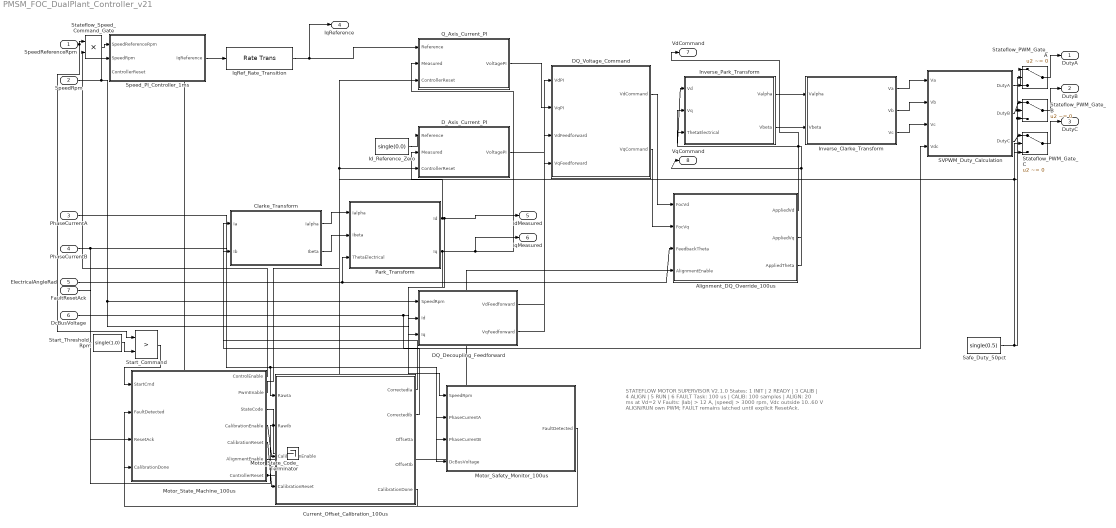
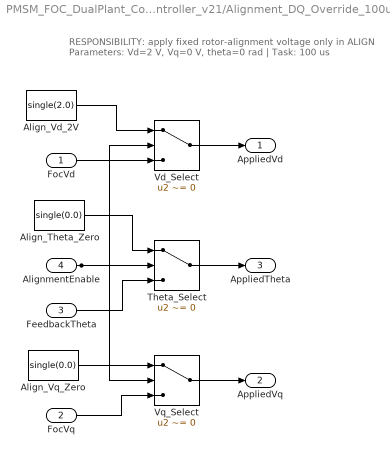
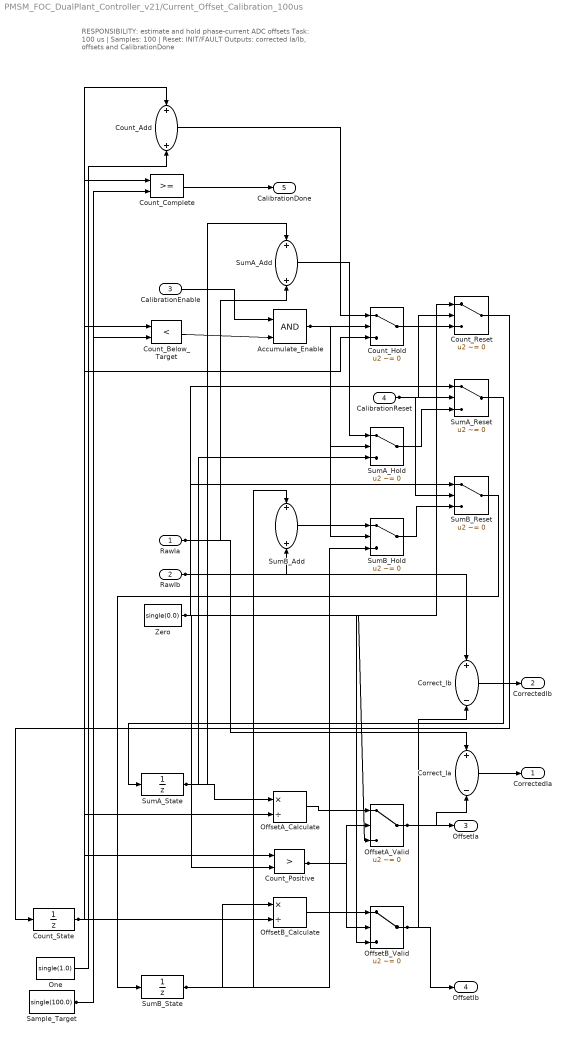
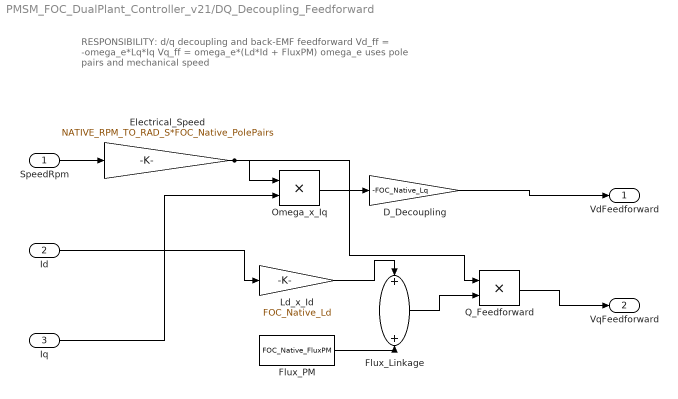
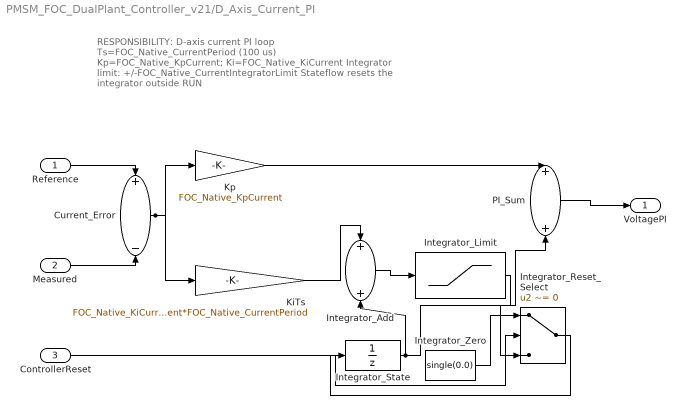
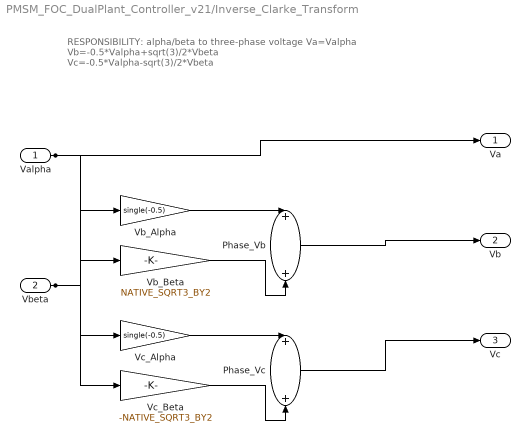
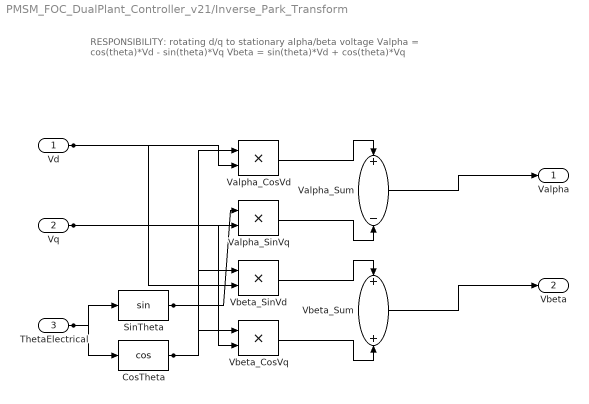
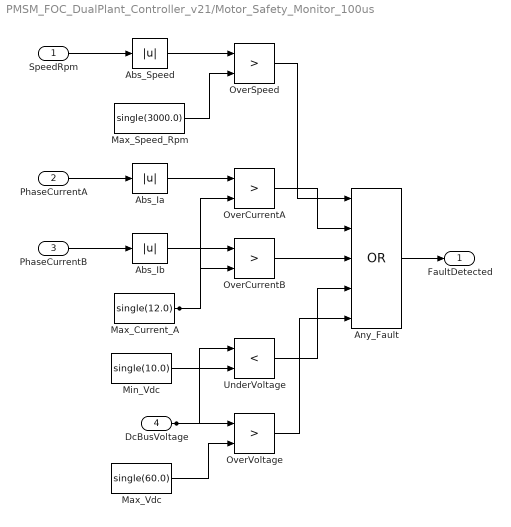
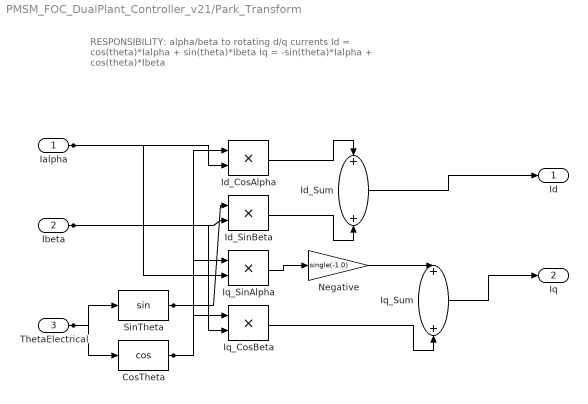
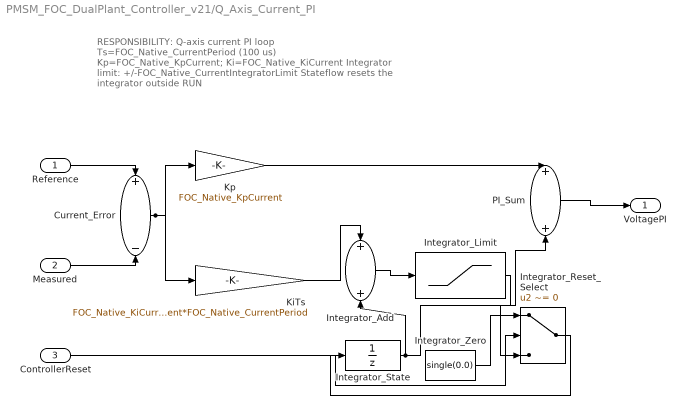
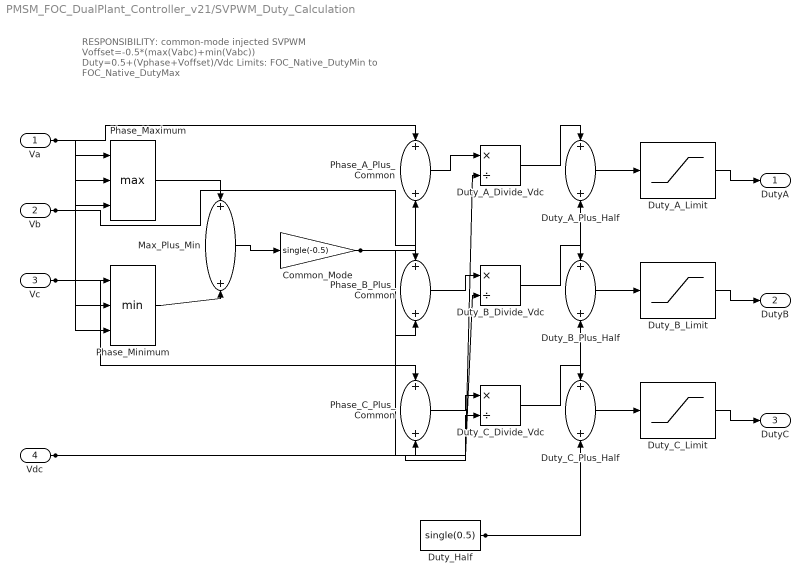
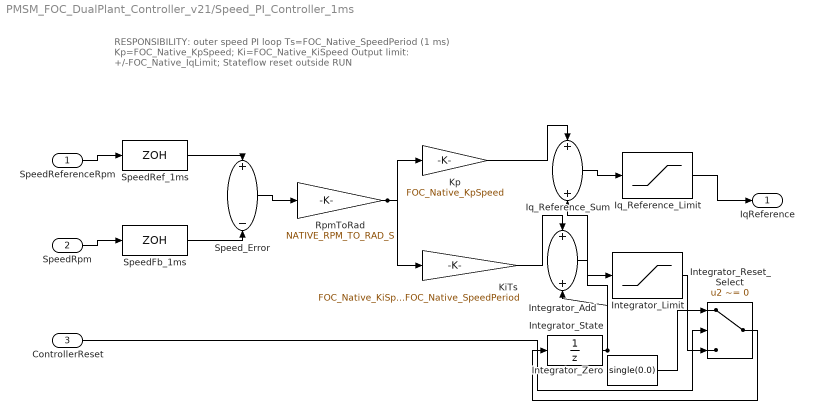
== system PMSM_FOC_DualPlant_Controller_v21/Clarke_Transform ==
  note: RESPONSIBILITY: two-current Clarke transform Ialpha = Ia; Ibeta = (Ia + 2*Ib)/sqrt(3) Parameter: NATIVE_INV_SQRT3
  Ia : Inport  OutDataTypeStr=single
  Ib : Inport  Port=2  OutDataTypeStr=single
  Ia_Plus_2Ib : Sum
  Ib_x2 : Gain  Gain=single(2.0)
  InvSqrt3 : Gain  Gain=NATIVE_INV_SQRT3
  Ialpha : Outport  OutDataTypeStr=single
  Ibeta : Outport  Port=2  OutDataTypeStr=single
  wires:
  Ia/1 -> Ialpha/1, Ia_Plus_2Ib/1
  Ib/1 -> Ib_x2/1
  Ib_x2/1 -> Ia_Plus_2Ib/2
  Ia_Plus_2Ib/1 -> InvSqrt3/1
  InvSqrt3/1 -> Ibeta/1

== system PMSM_FOC_DualPlant_Controller_v21/DQ_Voltage_Command ==
  note: RESPONSIBILITY: synthesize bounded d/q voltage commands Vd = sat(Vd_PI + Vd_ff); Vq = sat(Vq_PI + Vq_ff) Limit: +/-FOC_Native_VoltageLimit
  VdPI : Inport  OutDataTypeStr=single
  VqPI : Inport  Port=2  OutDataTypeStr=single
  VdFeedforward : Inport  Port=3  OutDataTypeStr=single
  VqFeedforward : Inport  Port=4  OutDataTypeStr=single
  Vd_Limit : Saturate  UpperLimit=FOC_Native_VoltageLimit  LowerLimit=-FOC_Native_VoltageLimit
  Vd_Raw : Sum
  Vq_Limit : Saturate  UpperLimit=FOC_Native_VoltageLimit  LowerLimit=-FOC_Native_VoltageLimit
  Vq_Raw : Sum
  VdCommand : Outport  OutDataTypeStr=single
  VqCommand : Outport  Port=2  OutDataTypeStr=single
  wires:
  VdPI/1 -> Vd_Raw/1
  VdFeedforward/1 -> Vd_Raw/2
  VqPI/1 -> Vq_Raw/1
  VqFeedforward/1 -> Vq_Raw/2
  Vd_Raw/1 -> Vd_Limit/1
  Vq_Raw/1 -> Vq_Limit/1
  Vd_Limit/1 -> VdCommand/1
  Vq_Limit/1 -> VqCommand/1

== stateflow chart PMSM_FOC_DualPlant_Controller_v21/Motor_State_Machine_100us ==
  state SUPERVISED
    state INIT
      entry:
      ControlEnable = 0;
      PwmEnable = 0;
      StateCode = 1;
      CalibrationEnable = 0;
      CalibrationReset = 1;
      AlignmentEnable = 0;
      ControllerReset = 1;
    state READY
      entry:
      ControlEnable = 0;
      PwmEnable = 0;
      StateCode = 2;
      CalibrationEnable = 0;
      CalibrationReset = 0;
      AlignmentEnable = 0;
      ControllerReset = 1;
    state CALIB
      entry:
      ControlEnable = 0;
      PwmEnable = 0;
      StateCode = 3;
      CalibrationEnable = 1;
      CalibrationReset = 0;
      AlignmentEnable = 0;
      ControllerReset = 1;
    state ALIGN
      entry:
      ControlEnable = 0;
      PwmEnable = 1;
      StateCode = 4;
      CalibrationEnable = 0;
      CalibrationReset = 0;
      AlignmentEnable = 1;
      ControllerReset = 1;
    state RUN
      entry:
      ControlEnable = 1;
      PwmEnable = 1;
      StateCode = 5;
      CalibrationEnable = 0;
      CalibrationReset = 0;
      AlignmentEnable = 0;
      ControllerReset = 0;
    INIT -> READY : after(1,tick)
    READY -> CALIB : [StartCmd]
    CALIB -> ALIGN [order 1] : [CalibrationDone]
    ALIGN -> RUN [order 1] : after(200,tick)
    ALIGN -> INIT [order 2] : [!StartCmd]
    RUN -> INIT : [!StartCmd]
  state FAULT
    entry:
    ControlEnable = 0;
    PwmEnable = 0;
    StateCode = 6;
    CalibrationEnable = 0;
    CalibrationReset = 1;
    AlignmentEnable = 0;
    ControllerReset = 1;
  (default) -> INIT
  CALIB -> FAULT [order 2] : after(150,tick)
  SUPERVISED -> FAULT : [FaultDetected]
  FAULT -> INIT : [ResetAck && !FaultDetected && !StartCmd]
  data: StartCmd input boolean; FaultDetected input boolean; ResetAck input boolean; CalibrationDone input boolean; ControlEnable output boolean; PwmEnable output boolean; StateCode output uint8; CalibrationEnable output boolean; CalibrationReset output boolean; AlignmentEnable output boolean; ControllerReset output boolean

/*
 * File: PMSM_FOC_DualPlant_Controller_v21.c
 *
 * Code generated for Simulink model 'PMSM_FOC_DualPlant_Controller_v21'.
 *
 * Model version                  : 1.33
 * Simulink Coder version         : 24.1 (R2024a) 19-Nov-2023
 * C/C++ source code generated on : Fri Aug 28 17:17:17 2026
 *
 * Target selection: ert.tlc
 * Embedded hardware selection: Intel->x86-64 (Windows64)
 * Code generation objectives: Unspecified
 * Validation result: Not run
 */

#include "PMSM_FOC_DualPlant_Controller_v21.h"
#include "rtwtypes.h"
#include <math.h>

/* Named constants for Chart: '<Root>/Motor_State_Machine_100us' */
#define PMSM_FOC_Dua_IN_NO_ACTIVE_CHILD ((uint8_T)0U)
#define PMSM_FOC_DualPlan_IN_SUPERVISED ((uint8_T)2U)
#define PMSM_FOC_DualPlant_Con_IN_ALIGN ((uint8_T)1U)
#define PMSM_FOC_DualPlant_Con_IN_CALIB ((uint8_T)2U)
#define PMSM_FOC_DualPlant_Con_IN_FAULT ((uint8_T)1U)
#define PMSM_FOC_DualPlant_Con_IN_READY ((uint8_T)4U)
#define PMSM_FOC_DualPlant_Cont_IN_INIT ((uint8_T)3U)
#define PMSM_FOC_DualPlant_Contr_IN_RUN ((uint8_T)5U)

/* Exported block parameters */
real32_T FOC_Native_CurrentIntegratorLimit = 30.0F;
                                  /* Variable: FOC_Native_CurrentIntegratorLimit
                                   * Referenced by:
                                   *   '<S6>/Integrator_Limit'
                                   *   '<S12>/Integrator_Limit'
                                   */
real32_T FOC_Native_CurrentPeriod = 0.0001F;/* Variable: FOC_Native_CurrentPeriod
                                             * Referenced by:
                                             *   '<S6>/KiTs'
                                             *   '<S12>/KiTs'
                                             */
real32_T FOC_Native_DutyMax = 0.98F;   /* Variable: FOC_Native_DutyMax
                                        * Referenced by:
                                        *   '<S13>/Duty_A_Limit'
                                        *   '<S13>/Duty_B_Limit'
                                        *   '<S13>/Duty_C_Limit'
                                        */
real32_T FOC_Native_DutyMin = 0.02F;   /* Variable: FOC_Native_DutyMin
                                        * Referenced by:
                                        *   '<S13>/Duty_A_Limit'
                                        *   '<S13>/Duty_B_Limit'
                                        *   '<S13>/Duty_C_Limit'
                                        */
real32_T FOC_Native_FluxPM = 0.05F;    /* Variable: FOC_Native_FluxPM
                                        * Referenced by: '<S4>/Flux_PM'
                                        */
real32_T FOC_Native_IqLimit = 8.0F;    /* Variable: FOC_Native_IqLimit
                                        * Referenced by:
                                        *   '<S14>/Integrator_Limit'
                                        *   '<S14>/Iq_Reference_Limit'
                                        */
real32_T FOC_Native_KiCurrent = 500.0F;/* Variable: FOC_Native_KiCurrent
                                        * Referenced by:
                                        *   '<S6>/KiTs'
                                        *   '<S12>/KiTs'
                                        */
real32_T FOC_Native_KiSpeed = 0.05F;   /* Variable: FOC_Native_KiSpeed
                                        * Referenced by: '<S14>/KiTs'
                                        */
real32_T FOC_Native_KpCurrent = 1.0F;  /* Variable: FOC_Native_KpCurrent
                                        * Referenced by:
                                        *   '<S6>/Kp'
                                        *   '<S12>/Kp'
                                        */
real32_T FOC_Native_KpSpeed = 0.02F;   /* Variable: FOC_Native_KpSpeed
                                        * Referenced by: '<S14>/Kp'
                                        */
real32_T FOC_Native_Ld = 0.001F;       /* Variable: FOC_Native_Ld
                                        * Referenced by: '<S4>/Ld_x_Id'
                                        */
real32_T FOC_Native_Lq = 0.001F;       /* Variable: FOC_Native_Lq
                                        * Referenced by: '<S4>/D_Decoupling'
                                        */
real32_T FOC_Native_PolePairs = 4.0F;  /* Variable: FOC_Native_PolePairs
                                        * Referenced by: '<S4>/Electrical_Speed'
                                        */
real32_T FOC_Native_SpeedPeriod = 0.001F;/* Variable: FOC_Native_SpeedPeriod
                                          * Referenced by: '<S14>/KiTs'
                                          */
real32_T FOC_Native_VoltageLimit = 26.0F;/* Variable: FOC_Native_VoltageLimit
                                          * Referenced by:
                                          *   '<S5>/Vd_Limit'
                                          *   '<S5>/Vq_Limit'
                                          */

/* Block signals (default storage) */
B_PMSM_FOC_DualPlant_Controll_T PMSM_FOC_DualPlant_Controller_B;

/* Block states (default storage) */
DW_PMSM_FOC_DualPlant_Control_T PMSM_FOC_DualPlant_Controlle_DW;

/* External inputs (root inport signals with default storage) */
ExtU_PMSM_FOC_DualPlant_Contr_T PMSM_FOC_DualPlant_Controller_U;

/* External outputs (root outports fed by signals with default storage) */
ExtY_PMSM_FOC_DualPlant_Contr_T PMSM_FOC_DualPlant_Controller_Y;

/* Real-time model */
static RT_MODEL_PMSM_FOC_DualPlant_C_T PMSM_FOC_DualPlant_Controlle_M_;
RT_MODEL_PMSM_FOC_DualPlant_C_T *const PMSM_FOC_DualPlant_Controlle_M =
  &PMSM_FOC_DualPlant_Controlle_M_;
static void rate_scheduler(void);

/*
 *         This function updates active task flag for each subrate.
 *         The function is called at model base rate, hence the
 *         generated code self-manages all its subrates.
 */
static void rate_scheduler(void)
{
  /* Compute which subrates run during the next base time step.  Subrates
   * are an integer multiple of the base rate counter.  Therefore, the subtask
   * counter is reset when it reaches its limit (zero means run).
   */
  (PMSM_FOC_DualPlant_Controlle_M->Timing.TaskCounters.TID[1])++;
  if ((PMSM_FOC_DualPlant_Controlle_M->Timing.TaskCounters.TID[1]) > 9) {/* Sample time: [0.001s, 0.0s] */
    PMSM_FOC_DualPlant_Controlle_M->Timing.TaskCounters.TID[1] = 0;
  }
}

/* Model step function */
void PMSM_FOC_DualPlant_Controller_v21_step(void)
{
  real32_T rtb_CosTheta;
  real32_T rtb_Current_Error;
  real32_T rtb_Electrical_Speed;
  real32_T rtb_Phase_Maximum;
  real32_T rtb_Phase_Minimum;
  real32_T rtb_SinTheta;
  boolean_T rtb_Any_Fault;
  boolean_T rtb_Start_Command;

  /* RelationalOperator: '<Root>/Start_Command' incorporates:
   *  Constant: '<Root>/Start_Threshold_Rpm'
   *  Inport: '<Root>/SpeedReferenceRpm'
   */
  rtb_Start_Command = (PMSM_FOC_DualPlant_Controller_U.SpeedReferenceRpm >
                       PMSM_FOC_DualPlant_Controller_P.Start_Threshold_Rpm_Value);

  /* Logic: '<S9>/Any_Fault' incorporates:
   *  Abs: '<S9>/Abs_Ia'
   *  Abs: '<S9>/Abs_Ib'
   *  Abs: '<S9>/Abs_Speed'
   *  Constant: '<S9>/Max_Current_A'
   *  Constant: '<S9>/Max_Speed_Rpm'
   *  Constant: '<S9>/Max_Vdc'
   *  Constant: '<S9>/Min_Vdc'
   *  Inport: '<Root>/DcBusVoltage'
   *  Inport: '<Root>/PhaseCurrentA'
   *  Inport: '<Root>/PhaseCurrentB'
   *  Inport: '<Root>/SpeedRpm'
   *  RelationalOperator: '<S9>/OverCurrentA'
   *  RelationalOperator: '<S9>/OverCurrentB'
   *  RelationalOperator: '<S9>/OverSpeed'
   *  RelationalOperator: '<S9>/OverVoltage'
   *  RelationalOperator: '<S9>/UnderVoltage'
   */
  rtb_Any_Fault = ((fabsf(PMSM_FOC_DualPlant_Controller_U.SpeedRpm) >
                    PMSM_FOC_DualPlant_Controller_P.Max_Speed_Rpm_Value) ||
                   (fabsf(PMSM_FOC_DualPlant_Controller_U.PhaseCurrentA) >
                    PMSM_FOC_DualPlant_Controller_P.Max_Current_A_Value) ||
                   (fabsf(PMSM_FOC_DualPlant_Controller_U.PhaseCurrentB) >
                    PMSM_FOC_DualPlant_Controller_P.Max_Current_A_Value) ||
                   (PMSM_FOC_DualPlant_Controller_U.DcBusVoltage <
                    PMSM_FOC_DualPlant_Controller_P.Min_Vdc_Value) ||
                   (PMSM_FOC_DualPlant_Controller_U.DcBusVoltage >
                    PMSM_FOC_DualPlant_Controller_P.Max_Vdc_Value));

  /* Chart: '<Root>/Motor_State_Machine_100us' incorporates:
   *  Constant: '<S3>/Sample_Target'
   *  Inport: '<Root>/FaultResetAck'
   *  RelationalOperator: '<S3>/Count_Complete'
   *  UnitDelay: '<S3>/Count_State'
   */
  if (PMSM_FOC_DualPlant_Controlle_DW.temporalCounter_i1 < 255U) {
    PMSM_FOC_DualPlant_Controlle_DW.temporalCounter_i1++;
  }

  if (PMSM_FOC_DualPlant_Controlle_DW.is_active_c3_PMSM_FOC_DualPlant == 0U) {
    PMSM_FOC_DualPlant_Controlle_DW.is_active_c3_PMSM_FOC_DualPlant = 1U;
    PMSM_FOC_DualPlant_Controlle_DW.is_c3_PMSM_FOC_DualPlant_Contro =
      PMSM_FOC_DualPlan_IN_SUPERVISED;
    PMSM_FOC_DualPlant_Controlle_DW.temporalCounter_i1 = 0U;
    PMSM_FOC_DualPlant_Controlle_DW.is_SUPERVISED =
      PMSM_FOC_DualPlant_Cont_IN_INIT;
    PMSM_FOC_DualPlant_Controller_B.ControlEnable = false;
    PMSM_FOC_DualPlant_Controller_B.PwmEnable = false;
    PMSM_FOC_DualPlant_Controller_B.CalibrationEnable = false;
    PMSM_FOC_DualPlant_Controller_B.CalibrationReset = true;
    PMSM_FOC_DualPlant_Controller_B.AlignmentEnable = false;
    PMSM_FOC_DualPlant_Controller_B.ControllerReset = true;
  } else if (PMSM_FOC_DualPlant_Controlle_DW.is_c3_PMSM_FOC_DualPlant_Contro ==
             PMSM_FOC_DualPlant_Con_IN_FAULT) {
    if (PMSM_FOC_DualPlant_Controller_U.FaultResetAck && (!rtb_Any_Fault) &&
        (!rtb_Start_Command)) {
      PMSM_FOC_DualPlant_Controlle_DW.is_c3_PMSM_FOC_DualPlant_Contro =
        PMSM_FOC_DualPlan_IN_SUPERVISED;
      PMSM_FOC_DualPlant_Controlle_DW.temporalCounter_i1 = 0U;
      PMSM_FOC_DualPlant_Controlle_DW.is_SUPERVISED =
        PMSM_FOC_DualPlant_Cont_IN_INIT;
      PMSM_FOC_DualPlant_Controller_B.ControlEnable = false;
      PMSM_FOC_DualPlant_Controller_B.PwmEnable = false;
      PMSM_FOC_DualPlant_Controller_B.CalibrationEnable = false;
      PMSM_FOC_DualPlant_Controller_B.CalibrationReset = true;
      PMSM_FOC_DualPlant_Controller_B.AlignmentEnable = false;
      PMSM_FOC_DualPlant_Controller_B.ControllerReset = true;
    }

    /* case IN_SUPERVISED: */
  } else if (rtb_Any_Fault) {
    PMSM_FOC_DualPlant_Controlle_DW.is_SUPERVISED =
      PMSM_FOC_Dua_IN_NO_ACTIVE_CHILD;
    PMSM_FOC_DualPlant_Controlle_DW.is_c3_PMSM_FOC_DualPlant_Contro =
      PMSM_FOC_DualPlant_Con_IN_FAULT;
    PMSM_FOC_DualPlant_Controller_B.ControlEnable = false;
    PMSM_FOC_DualPlant_Controller_B.PwmEnable = false;
    PMSM_FOC_DualPlant_Controller_B.CalibrationEnable = false;
    PMSM_FOC_DualPlant_Controller_B.CalibrationReset = true;
    PMSM_FOC_DualPlant_Controller_B.AlignmentEnable = false;
    PMSM_FOC_DualPlant_Controller_B.ControllerReset = true;
  } else {
    switch (PMSM_FOC_DualPlant_Controlle_DW.is_SUPERVISED) {
     case PMSM_FOC_DualPlant_Con_IN_ALIGN:
      if (PMSM_FOC_DualPlant_Controlle_DW.temporalCounter_i1 >= 200) {
        PMSM_FOC_DualPlant_Controlle_DW.is_SUPERVISED =
          PMSM_FOC_DualPlant_Contr_IN_RUN;
        PMSM_FOC_DualPlant_Controller_B.ControlEnable = true;
        PMSM_FOC_DualPlant_Controller_B.PwmEnable = true;
        PMSM_FOC_DualPlant_Controller_B.CalibrationEnable = false;
        PMSM_FOC_DualPlant_Controller_B.CalibrationReset = false;
        PMSM_FOC_DualPlant_Controller_B.AlignmentEnable = false;
        PMSM_FOC_DualPlant_Controller_B.ControllerReset = false;
      } else if (!rtb_Start_Command) {
        PMSM_FOC_DualPlant_Controlle_DW.temporalCounter_i1 = 0U;
        PMSM_FOC_DualPlant_Controlle_DW.is_SUPERVISED =
          PMSM_FOC_DualPlant_Cont_IN_INIT;
        PMSM_FOC_DualPlant_Controller_B.ControlEnable = false;
        PMSM_FOC_DualPlant_Controller_B.PwmEnable = false;
        PMSM_FOC_DualPlant_Controller_B.CalibrationEnable = false;
        PMSM_FOC_DualPlant_Controller_B.CalibrationReset = true;
        PMSM_FOC_DualPlant_Controller_B.AlignmentEnable = false;
        PMSM_FOC_DualPlant_Controller_B.ControllerReset = true;
      }
      break;

     case PMSM_FOC_DualPlant_Con_IN_CALIB:
      if (PMSM_FOC_DualPlant_Controlle_DW.Count_State_DSTATE >=
          PMSM_FOC_DualPlant_Controller_P.Sample_Target_Value) {
        PMSM_FOC_DualPlant_Controlle_DW.temporalCounter_i1 = 0U;
        PMSM_FOC_DualPlant_Controlle_DW.is_SUPERVISED =
          PMSM_FOC_DualPlant_Con_IN_ALIGN;
        PMSM_FOC_DualPlant_Controller_B.ControlEnable = false;
        PMSM_FOC_DualPlant_Controller_B.PwmEnable = true;
        PMSM_FOC_DualPlant_Controller_B.CalibrationEnable = false;
        PMSM_FOC_DualPlant_Controller_B.CalibrationReset = false;
        PMSM_FOC_DualPlant_Controller_B.AlignmentEnable = true;
        PMSM_FOC_DualPlant_Controller_B.ControllerReset = true;
      } else if (PMSM_FOC_DualPlant_Controlle_DW.temporalCounter_i1 >= 150) {
        PMSM_FOC_DualPlant_Controlle_DW.is_SUPERVISED =
          PMSM_FOC_Dua_IN_NO_ACTIVE_CHILD;
        PMSM_FOC_DualPlant_Controlle_DW.is_c3_PMSM_FOC_DualPlant_Contro =
          PMSM_FOC_DualPlant_Con_IN_FAULT;
        PMSM_FOC_DualPlant_Controller_B.ControlEnable = false;
        PMSM_FOC_DualPlant_Controller_B.PwmEnable = false;
        PMSM_FOC_DualPlant_Controller_B.CalibrationEnable = false;
        PMSM_FOC_DualPlant_Controller_B.CalibrationReset = true;
        PMSM_FOC_DualPlant_Controller_B.AlignmentEnable = false;
        PMSM_FOC_DualPlant_Controller_B.ControllerReset = true;
      }
      break;

     case PMSM_FOC_DualPlant_Cont_IN_INIT:
      PMSM_FOC_DualPlant_Controlle_DW.is_SUPERVISED =
        PMSM_FOC_DualPlant_Con_IN_READY;
      PMSM_FOC_DualPlant_Controller_B.ControlEnable = false;
      PMSM_FOC_DualPlant_Controller_B.PwmEnable = false;
      PMSM_FOC_DualPlant_Controller_B.CalibrationEnable = false;
      PMSM_FOC_DualPlant_Controller_B.CalibrationReset = false;
      PMSM_FOC_DualPlant_Controller_B.AlignmentEnable = false;
      PMSM_FOC_DualPlant_Controller_B.ControllerReset = true;
      break;

     case PMSM_FOC_DualPlant_Con_IN_READY:
      if (rtb_Start_Command) {
        PMSM_FOC_DualPlant_Controlle_DW.temporalCounter_i1 = 0U;
        PMSM_FOC_DualPlant_Controlle_DW.is_SUPERVISED =
          PMSM_FOC_DualPlant_Con_IN_CALIB;
        PMSM_FOC_DualPlant_Controller_B.ControlEnable = false;
        PMSM_FOC_DualPlant_Controller_B.PwmEnable = false;
        PMSM_FOC_DualPlant_Controller_B.CalibrationEnable = true;
        PMSM_FOC_DualPlant_Controller_B.CalibrationReset = false;
        PMSM_FOC_DualPlant_Controller_B.AlignmentEnable = false;
        PMSM_FOC_DualPlant_Controller_B.ControllerReset = true;
      }
      break;

     default:
      /* case IN_RUN: */
      if (!rtb_Start_Command) {
        PMSM_FOC_DualPlant_Controlle_DW.temporalCounter_i1 = 0U;
        PMSM_FOC_DualPlant_Controlle_DW.is_SUPERVISED =
          PMSM_FOC_DualPlant_Cont_IN_INIT;
        PMSM_FOC_DualPlant_Controller_B.ControlEnable = false;
        PMSM_FOC_DualPlant_Controller_B.PwmEnable = false;
        PMSM_FOC_DualPlant_Controller_B.CalibrationEnable = false;
        PMSM_FOC_DualPlant_Controller_B.CalibrationReset = true;
        PMSM_FOC_DualPlant_Controller_B.AlignmentEnable = false;
        PMSM_FOC_DualPlant_Controller_B.ControllerReset = true;
      }
      break;
    }
  }

  /* End of Chart: '<Root>/Motor_State_Machine_100us' */

  /* Switch: '<S1>/Theta_Select' incorporates:
   *  Constant: '<S1>/Align_Theta_Zero'
   *  Inport: '<Root>/ElectricalAngleRad'
   */
  if (PMSM_FOC_DualPlant_Controller_B.AlignmentEnable) {
    rtb_SinTheta = PMSM_FOC_DualPlant_Controller_P.Align_Theta_Zero_Value;
  } else {
    rtb_SinTheta = PMSM_FOC_DualPlant_Controller_U.ElectricalAngleRad;
  }

  /* End of Switch: '<S1>/Theta_Select' */

  /* Trigonometry: '<S8>/CosTheta' */
  rtb_CosTheta = cosf(rtb_SinTheta);

  /* Trigonometry: '<S11>/CosTheta' incorporates:
   *  Inport: '<Root>/ElectricalAngleRad'
   */
  rtb_Phase_Minimum = cosf(PMSM_FOC_DualPlant_Controller_U.ElectricalAngleRad);

  /* Switch: '<S3>/OffsetA_Valid' incorporates:
   *  Constant: '<S3>/Zero'
   *  Product: '<S3>/OffsetA_Calculate'
   *  RelationalOperator: '<S3>/Count_Positive'
   *  Switch: '<S3>/OffsetB_Valid'
   *  UnitDelay: '<S3>/Count_State'
   *  UnitDelay: '<S3>/SumA_State'
   */
  if (PMSM_FOC_DualPlant_Controlle_DW.Count_State_DSTATE >
      PMSM_FOC_DualPlant_Controller_P.Zero_Value) {
    rtb_Phase_Maximum = PMSM_FOC_DualPlant_Controlle_DW.SumA_State_DSTATE /
      PMSM_FOC_DualPlant_Controlle_DW.Count_State_DSTATE;

    /* Switch: '<S1>/Vd_Select' incorporates:
     *  Product: '<S3>/OffsetA_Calculate'
     *  Product: '<S3>/OffsetB_Calculate'
     *  UnitDelay: '<S3>/SumA_State'
     *  UnitDelay: '<S3>/SumB_State'
     */
    PMSM_FOC_DualPlant_Controller_Y.VdCommand =
      PMSM_FOC_DualPlant_Controlle_DW.SumB_State_DSTATE /
      PMSM_FOC_DualPlant_Controlle_DW.Count_State_DSTATE;
  } else {
    rtb_Phase_Maximum = PMSM_FOC_DualPlant_Controller_P.Zero_Value;

    /* Switch: '<S1>/Vd_Select' */
    PMSM_FOC_DualPlant_Controller_Y.VdCommand =
      PMSM_FOC_DualPlant_Controller_P.Zero_Value;
  }

  /* End of Switch: '<S3>/OffsetA_Valid' */

  /* Sum: '<S3>/Correct_Ia' incorporates:
   *  Inport: '<Root>/PhaseCurrentA'
   */
  rtb_Phase_Maximum = PMSM_FOC_DualPlant_Controller_U.PhaseCurrentA -
    rtb_Phase_Maximum;

  /* Switch: '<S1>/Vq_Select' incorporates:
   *  Inport: '<Root>/ElectricalAngleRad'
   *  Trigonometry: '<S11>/SinTheta'
   */
  PMSM_FOC_DualPlant_Controller_Y.VqCommand = sinf
    (PMSM_FOC_DualPlant_Controller_U.ElectricalAngleRad);

  /* Switch: '<S1>/Vd_Select' incorporates:
   *  Gain: '<S2>/Ib_x2'
   *  Gain: '<S2>/InvSqrt3'
   *  Inport: '<Root>/PhaseCurrentB'
   *  Sum: '<S2>/Ia_Plus_2Ib'
   *  Sum: '<S3>/Correct_Ib'
   */
  PMSM_FOC_DualPlant_Controller_Y.VdCommand =
    ((PMSM_FOC_DualPlant_Controller_U.PhaseCurrentB -
      PMSM_FOC_DualPlant_Controller_Y.VdCommand) *
     PMSM_FOC_DualPlant_Controller_P.Ib_x2_Gain + rtb_Phase_Maximum) *
    PMSM_FOC_DualPlant_Controller_P.NATIVE_INV_SQRT3;

  /* Sum: '<S11>/Id_Sum' incorporates:
   *  Product: '<S11>/Id_CosAlpha'
   *  Product: '<S11>/Id_SinBeta'
   */
  PMSM_FOC_DualPlant_Controller_Y.IdMeasured = rtb_Phase_Minimum *
    rtb_Phase_Maximum + PMSM_FOC_DualPlant_Controller_Y.VqCommand *
    PMSM_FOC_DualPlant_Controller_Y.VdCommand;

  /* Sum: '<S6>/Current_Error' incorporates:
   *  Constant: '<Root>/Id_Reference_Zero'
   *
   * Block description for '<Root>/Id_Reference_Zero':
   *  Field-oriented control d-axis current reference: Id*=0 A.
   */
  rtb_Current_Error = PMSM_FOC_DualPlant_Controller_P.Id_Reference_Zero_Value -
    PMSM_FOC_DualPlant_Controller_Y.IdMeasured;

  /* Gain: '<S4>/Electrical_Speed' incorporates:
   *  Inport: '<Root>/SpeedRpm'
   */
  rtb_Electrical_Speed = PMSM_FOC_DualPlant_Controller_P.NATIVE_RPM_TO_RAD_S *
    FOC_Native_PolePairs * PMSM_FOC_DualPlant_Controller_U.SpeedRpm;

  /* Sum: '<S11>/Iq_Sum' incorporates:
   *  Gain: '<S11>/Negative'
   *  Product: '<S11>/Iq_CosBeta'
   *  Product: '<S11>/Iq_SinAlpha'
   */
  PMSM_FOC_DualPlant_Controller_Y.IqMeasured =
    PMSM_FOC_DualPlant_Controller_Y.VqCommand * rtb_Phase_Maximum *
    PMSM_FOC_DualPlant_Controller_P.Negative_Gain + rtb_Phase_Minimum *
    PMSM_FOC_DualPlant_Controller_Y.VdCommand;

  /* Switch: '<S1>/Vd_Select' */
  if (PMSM_FOC_DualPlant_Controller_B.AlignmentEnable) {
    /* Switch: '<S1>/Vd_Select' incorporates:
     *  Constant: '<S1>/Align_Vd_2V'
     */
    PMSM_FOC_DualPlant_Controller_Y.VdCommand =
      PMSM_FOC_DualPlant_Controller_P.Align_Vd_2V_Value;
  } else {
    /* Switch: '<S1>/Vd_Select' incorporates:
     *  Gain: '<S4>/D_Decoupling'
     *  Gain: '<S6>/Kp'
     *  Product: '<S4>/Omega_x_Iq'
     *  Sum: '<S5>/Vd_Raw'
     *  Sum: '<S6>/PI_Sum'
     *  UnitDelay: '<S6>/Integrator_State'
     */
    PMSM_FOC_DualPlant_Controller_Y.VdCommand = (FOC_Native_KpCurrent *
      rtb_Current_Error +
      PMSM_FOC_DualPlant_Controlle_DW.Integrator_State_DSTATE) +
      rtb_Electrical_Speed * PMSM_FOC_DualPlant_Controller_Y.IqMeasured *
      -FOC_Native_Lq;

    /* Saturate: '<S5>/Vd_Limit' */
    if (PMSM_FOC_DualPlant_Controller_Y.VdCommand > FOC_Native_VoltageLimit) {
      /* Switch: '<S1>/Vd_Select' */
      PMSM_FOC_DualPlant_Controller_Y.VdCommand = FOC_Native_VoltageLimit;
    } else if (PMSM_FOC_DualPlant_Controller_Y.VdCommand <
               -FOC_Native_VoltageLimit) {
      /* Switch: '<S1>/Vd_Select' */
      PMSM_FOC_DualPlant_Controller_Y.VdCommand = -FOC_Native_VoltageLimit;
    }

    /* End of Saturate: '<S5>/Vd_Limit' */
  }

  /* End of Switch: '<S1>/Vd_Select' */

  /* Trigonometry: '<S8>/SinTheta' */
  rtb_SinTheta = sinf(rtb_SinTheta);

  /* RateTransition: '<Root>/IqRef_Rate_Transition'
   *
   * Block description for '<Root>/IqRef_Rate_Transition':
   *  Explicit deterministic transfer from 1 ms speed task to 100 us current
   *  task.
   */
  if (PMSM_FOC_DualPlant_Controlle_M->Timing.TaskCounters.TID[1] == 0) {
    /* Outport: '<Root>/IqReference' */
    PMSM_FOC_DualPlant_Controller_Y.IqReference =
      PMSM_FOC_DualPlant_Controlle_DW.IqRef_Rate_Transition_Buffer0;
  }

  /* End of RateTransition: '<Root>/IqRef_Rate_Transition' */

  /* Sum: '<S12>/Current_Error' incorporates:
   *  Outport: '<Root>/IqReference'
   */
  rtb_Phase_Minimum = PMSM_FOC_DualPlant_Controller_Y.IqReference -
    PMSM_FOC_DualPlant_Controller_Y.IqMeasured;

  /* Switch: '<S1>/Vq_Select' */
  if (PMSM_FOC_DualPlant_Controller_B.AlignmentEnable) {
    /* Switch: '<S1>/Vq_Select' incorporates:
     *  Constant: '<S1>/Align_Vq_Zero'
     */
    PMSM_FOC_DualPlant_Controller_Y.VqCommand =
      PMSM_FOC_DualPlant_Controller_P.Align_Vq_Zero_Value;
  } else {
    /* Switch: '<S1>/Vq_Select' incorporates:
     *  Constant: '<S4>/Flux_PM'
     *  Gain: '<S12>/Kp'
     *  Gain: '<S4>/Ld_x_Id'
     *  Product: '<S4>/Q_Feedforward'
     *  Sum: '<S12>/PI_Sum'
     *  Sum: '<S4>/Flux_Linkage'
     *  Sum: '<S5>/Vq_Raw'
     *  UnitDelay: '<S12>/Integrator_State'
     */
    PMSM_FOC_DualPlant_Controller_Y.VqCommand = (FOC_Native_Ld *
      PMSM_FOC_DualPlant_Controller_Y.IdMeasured + FOC_Native_FluxPM) *
      rtb_Electrical_Speed + (FOC_Native_KpCurrent * rtb_Phase_Minimum +
      PMSM_FOC_DualPlant_Controlle_DW.Integrator_State_DSTATE_c);

    /* Saturate: '<S5>/Vq_Limit' */
    if (PMSM_FOC_DualPlant_Controller_Y.VqCommand > FOC_Native_VoltageLimit) {
      /* Switch: '<S1>/Vq_Select' */
      PMSM_FOC_DualPlant_Controller_Y.VqCommand = FOC_Native_VoltageLimit;
    } else if (PMSM_FOC_DualPlant_Controller_Y.VqCommand <
               -FOC_Native_VoltageLimit) {
      /* Switch: '<S1>/Vq_Select' */
      PMSM_FOC_DualPlant_Controller_Y.VqCommand = -FOC_Native_VoltageLimit;
    }

    /* End of Saturate: '<S5>/Vq_Limit' */
  }

  /* End of Switch: '<S1>/Vq_Select' */

  /* Sum: '<S8>/Valpha_Sum' incorporates:
   *  Product: '<S8>/Valpha_CosVd'
   *  Product: '<S8>/Valpha_SinVq'
   */
  rtb_Electrical_Speed = rtb_CosTheta *
    PMSM_FOC_DualPlant_Controller_Y.VdCommand - rtb_SinTheta *
    PMSM_FOC_DualPlant_Controller_Y.VqCommand;

  /* Sum: '<S8>/Vbeta_Sum' incorporates:
   *  Product: '<S8>/Vbeta_CosVq'
   *  Product: '<S8>/Vbeta_SinVd'
   */
  rtb_Phase_Maximum = rtb_SinTheta * PMSM_FOC_DualPlant_Controller_Y.VdCommand +
    rtb_CosTheta * PMSM_FOC_DualPlant_Controller_Y.VqCommand;

  /* Sum: '<S7>/Phase_Vb' incorporates:
   *  Gain: '<S7>/Vb_Alpha'
   *  Gain: '<S7>/Vb_Beta'
   */
  rtb_CosTheta = PMSM_FOC_DualPlant_Controller_P.Vb_Alpha_Gain *
    rtb_Electrical_Speed + PMSM_FOC_DualPlant_Controller_P.NATIVE_SQRT3_BY2 *
    rtb_Phase_Maximum;

  /* Sum: '<S7>/Phase_Vc' incorporates:
   *  Gain: '<S7>/Vc_Alpha'
   *  Gain: '<S7>/Vc_Beta'
   */
  rtb_Phase_Maximum = PMSM_FOC_DualPlant_Controller_P.Vc_Alpha_Gain *
    rtb_Electrical_Speed + -PMSM_FOC_DualPlant_Controller_P.NATIVE_SQRT3_BY2 *
    rtb_Phase_Maximum;

  /* Gain: '<S13>/Common_Mode' incorporates:
   *  MinMax: '<S13>/Phase_Maximum'
   *  MinMax: '<S13>/Phase_Minimum'
   *  Sum: '<S13>/Max_Plus_Min'
   */
  rtb_SinTheta = (fmaxf(fmaxf(rtb_Electrical_Speed, rtb_CosTheta),
                        rtb_Phase_Maximum) + fminf(fminf(rtb_Electrical_Speed,
    rtb_CosTheta), rtb_Phase_Maximum)) *
    PMSM_FOC_DualPlant_Controller_P.Common_Mode_Gain;

  /* Switch: '<Root>/Stateflow_PWM_Gate_B' incorporates:
   *  Switch: '<Root>/Stateflow_PWM_Gate_A'
   *  Switch: '<Root>/Stateflow_PWM_Gate_C'
   */
  if (PMSM_FOC_DualPlant_Controller_B.PwmEnable) {
    /* Sum: '<S13>/Duty_B_Plus_Half' incorporates:
     *  Constant: '<S13>/Duty_Half'
     *  Inport: '<Root>/DcBusVoltage'
     *  Product: '<S13>/Duty_B_Divide_Vdc'
     *  Sum: '<S13>/Phase_B_Plus_Common'
     */
    PMSM_FOC_DualPlant_Controller_Y.DutyB = (rtb_CosTheta + rtb_SinTheta) /
      PMSM_FOC_DualPlant_Controller_U.DcBusVoltage +
      PMSM_FOC_DualPlant_Controller_P.Duty_Half_Value;

    /* Saturate: '<S13>/Duty_B_Limit' */
    if (PMSM_FOC_DualPlant_Controller_Y.DutyB > FOC_Native_DutyMax) {
      /* Sum: '<S13>/Duty_B_Plus_Half' incorporates:
       *  Outport: '<Root>/DutyB'
       */
      PMSM_FOC_DualPlant_Controller_Y.DutyB = FOC_Native_DutyMax;
    } else if (PMSM_FOC_DualPlant_Controller_Y.DutyB < FOC_Native_DutyMin) {
      /* Sum: '<S13>/Duty_B_Plus_Half' incorporates:
       *  Outport: '<Root>/DutyB'
       */
      PMSM_FOC_DualPlant_Controller_Y.DutyB = FOC_Native_DutyMin;
    }

    /* End of Saturate: '<S13>/Duty_B_Limit' */

    /* Sum: '<S13>/Duty_A_Plus_Half' incorporates:
     *  Constant: '<S13>/Duty_Half'
     *  Inport: '<Root>/DcBusVoltage'
     *  Product: '<S13>/Duty_A_Divide_Vdc'
     *  Sum: '<S13>/Phase_A_Plus_Common'
     */
    PMSM_FOC_DualPlant_Controller_Y.DutyA = (rtb_Electrical_Speed + rtb_SinTheta)
      / PMSM_FOC_DualPlant_Controller_U.DcBusVoltage +
      PMSM_FOC_DualPlant_Controller_P.Duty_Half_Value;

    /* Saturate: '<S13>/Duty_A_Limit' */
    if (PMSM_FOC_DualPlant_Controller_Y.DutyA > FOC_Native_DutyMax) {
      /* Sum: '<S13>/Duty_A_Plus_Half' incorporates:
       *  Outport: '<Root>/DutyA'
       */
      PMSM_FOC_DualPlant_Controller_Y.DutyA = FOC_Native_DutyMax;
    } else if (PMSM_FOC_DualPlant_Controller_Y.DutyA < FOC_Native_DutyMin) {
      /* Sum: '<S13>/Duty_A_Plus_Half' incorporates:
       *  Outport: '<Root>/DutyA'
       */
      PMSM_FOC_DualPlant_Controller_Y.DutyA = FOC_Native_DutyMin;
    }

    /* End of Saturate: '<S13>/Duty_A_Limit' */

    /* Sum: '<S13>/Duty_C_Plus_Half' incorporates:
     *  Constant: '<S13>/Duty_Half'
     *  Inport: '<Root>/DcBusVoltage'
     *  Product: '<S13>/Duty_C_Divide_Vdc'
     *  Sum: '<S13>/Phase_C_Plus_Common'
     */
    PMSM_FOC_DualPlant_Controller_Y.DutyC = (rtb_Phase_Maximum + rtb_SinTheta) /
      PMSM_FOC_DualPlant_Controller_U.DcBusVoltage +
      PMSM_FOC_DualPlant_Controller_P.Duty_Half_Value;

    /* Saturate: '<S13>/Duty_C_Limit' */
    if (PMSM_FOC_DualPlant_Controller_Y.DutyC > FOC_Native_DutyMax) {
      /* Sum: '<S13>/Duty_C_Plus_Half' incorporates:
       *  Outport: '<Root>/DutyC'
       */
      PMSM_FOC_DualPlant_Controller_Y.DutyC = FOC_Native_DutyMax;
    } else if (PMSM_FOC_DualPlant_Controller_Y.DutyC < FOC_Native_DutyMin) {
      /* Sum: '<S13>/Duty_C_Plus_Half' incorporates:
       *  Outport: '<Root>/DutyC'
       */
      PMSM_FOC_DualPlant_Controller_Y.DutyC = FOC_Native_DutyMin;
    }

    /* End of Saturate: '<S13>/Duty_C_Limit' */
  } else {
    /* Sum: '<S13>/Duty_B_Plus_Half' incorporates:
     *  Constant: '<Root>/Safe_Duty_50pct'
     *  Outport: '<Root>/DutyB'
     */
    PMSM_FOC_DualPlant_Controller_Y.DutyB =
      PMSM_FOC_DualPlant_Controller_P.Safe_Duty_50pct_Value;

    /* Sum: '<S13>/Duty_A_Plus_Half' incorporates:
     *  Constant: '<Root>/Safe_Duty_50pct'
     *  Outport: '<Root>/DutyA'
     */
    PMSM_FOC_DualPlant_Controller_Y.DutyA =
      PMSM_FOC_DualPlant_Controller_P.Safe_Duty_50pct_Value;

    /* Sum: '<S13>/Duty_C_Plus_Half' incorporates:
     *  Constant: '<Root>/Safe_Duty_50pct'
     *  Outport: '<Root>/DutyC'
     */
    PMSM_FOC_DualPlant_Controller_Y.DutyC =
      PMSM_FOC_DualPlant_Controller_P.Safe_Duty_50pct_Value;
  }

  /* End of Switch: '<Root>/Stateflow_PWM_Gate_B' */

  /* Switch: '<S12>/Integrator_Reset_Select' incorporates:
   *  Switch: '<S6>/Integrator_Reset_Select'
   */
  if (PMSM_FOC_DualPlant_Controller_B.ControllerReset) {
    /* Sum: '<S12>/Integrator_Add' incorporates:
     *  Constant: '<S12>/Integrator_Zero'
     *  UnitDelay: '<S12>/Integrator_State'
     */
    PMSM_FOC_DualPlant_Controlle_DW.Integrator_State_DSTATE_c =
      PMSM_FOC_DualPlant_Controller_P.Integrator_Zero_Value_h;

    /* Sum: '<S6>/Integrator_Add' incorporates:
     *  Constant: '<S6>/Integrator_Zero'
     *  UnitDelay: '<S6>/Integrator_State'
     */
    PMSM_FOC_DualPlant_Controlle_DW.Integrator_State_DSTATE =
      PMSM_FOC_DualPlant_Controller_P.Integrator_Zero_Value;
  } else {
    /* Gain: '<S12>/KiTs' incorporates:
     *  Gain: '<S6>/KiTs'
     */
    rtb_SinTheta = FOC_Native_KiCurrent * FOC_Native_CurrentPeriod;

    /* Sum: '<S12>/Integrator_Add' incorporates:
     *  Gain: '<S12>/KiTs'
     *  UnitDelay: '<S12>/Integrator_State'
     */
    PMSM_FOC_DualPlant_Controlle_DW.Integrator_State_DSTATE_c += rtb_SinTheta *
      rtb_Phase_Minimum;

    /* Saturate: '<S12>/Integrator_Limit' */
    if (PMSM_FOC_DualPlant_Controlle_DW.Integrator_State_DSTATE_c >
        FOC_Native_CurrentIntegratorLimit) {
      /* Sum: '<S12>/Integrator_Add' */
      PMSM_FOC_DualPlant_Controlle_DW.Integrator_State_DSTATE_c =
        FOC_Native_CurrentIntegratorLimit;
    } else if (PMSM_FOC_DualPlant_Controlle_DW.Integrator_State_DSTATE_c <
               -FOC_Native_CurrentIntegratorLimit) {
      /* Sum: '<S12>/Integrator_Add' */
      PMSM_FOC_DualPlant_Controlle_DW.Integrator_State_DSTATE_c =
        -FOC_Native_CurrentIntegratorLimit;
    }

    /* End of Saturate: '<S12>/Integrator_Limit' */

    /* Sum: '<S6>/Integrator_Add' incorporates:
     *  Gain: '<S6>/KiTs'
     *  UnitDelay: '<S6>/Integrator_State'
     */
    PMSM_FOC_DualPlant_Controlle_DW.Integrator_State_DSTATE += rtb_SinTheta *
      rtb_Current_Error;

    /* Saturate: '<S6>/Integrator_Limit' */
    if (PMSM_FOC_DualPlant_Controlle_DW.Integrator_State_DSTATE >
        FOC_Native_CurrentIntegratorLimit) {
      /* Sum: '<S6>/Integrator_Add' */
      PMSM_FOC_DualPlant_Controlle_DW.Integrator_State_DSTATE =
        FOC_Native_CurrentIntegratorLimit;
    } else if (PMSM_FOC_DualPlant_Controlle_DW.Integrator_State_DSTATE <
               -FOC_Native_CurrentIntegratorLimit) {
      /* Sum: '<S6>/Integrator_Add' */
      PMSM_FOC_DualPlant_Controlle_DW.Integrator_State_DSTATE =
        -FOC_Native_CurrentIntegratorLimit;
    }

    /* End of Saturate: '<S6>/Integrator_Limit' */
  }

  /* End of Switch: '<S12>/Integrator_Reset_Select' */

  /* Switch: '<S3>/SumB_Reset' incorporates:
   *  Constant: '<S3>/Sample_Target'
   *  Constant: '<S3>/Zero'
   *  Logic: '<S3>/Accumulate_Enable'
   *  RelationalOperator: '<S3>/Count_Below_Target'
   *  Switch: '<S3>/Count_Hold'
   *  Switch: '<S3>/Count_Reset'
   *  Switch: '<S3>/SumA_Hold'
   *  Switch: '<S3>/SumA_Reset'
   *  Switch: '<S3>/SumB_Hold'
   *  UnitDelay: '<S3>/Count_State'
   *  UnitDelay: '<S3>/SumA_State'
   *  UnitDelay: '<S3>/SumB_State'
   */
  if (PMSM_FOC_DualPlant_Controller_B.CalibrationReset) {
    PMSM_FOC_DualPlant_Controlle_DW.SumB_State_DSTATE =
      PMSM_FOC_DualPlant_Controller_P.Zero_Value;
    PMSM_FOC_DualPlant_Controlle_DW.Count_State_DSTATE =
      PMSM_FOC_DualPlant_Controller_P.Zero_Value;
    PMSM_FOC_DualPlant_Controlle_DW.SumA_State_DSTATE =
      PMSM_FOC_DualPlant_Controller_P.Zero_Value;
  } else if (PMSM_FOC_DualPlant_Controller_B.CalibrationEnable &&
             (PMSM_FOC_DualPlant_Controlle_DW.Count_State_DSTATE <
              PMSM_FOC_DualPlant_Controller_P.Sample_Target_Value)) {
    /* UnitDelay: '<S3>/SumB_State' incorporates:
     *  Inport: '<Root>/PhaseCurrentB'
     *  Sum: '<S3>/SumB_Add'
     *  Switch: '<S3>/SumB_Hold'
     */
    PMSM_FOC_DualPlant_Controlle_DW.SumB_State_DSTATE +=
      PMSM_FOC_DualPlant_Controller_U.PhaseCurrentB;

    /* UnitDelay: '<S3>/Count_State' incorporates:
     *  Constant: '<S3>/One'
     *  Sum: '<S3>/Count_Add'
     *  Switch: '<S3>/Count_Hold'
     */
    PMSM_FOC_DualPlant_Controlle_DW.Count_State_DSTATE +=
      PMSM_FOC_DualPlant_Controller_P.One_Value;

    /* UnitDelay: '<S3>/SumA_State' incorporates:
     *  Inport: '<Root>/PhaseCurrentA'
     *  Sum: '<S3>/SumA_Add'
     *  Switch: '<S3>/SumA_Hold'
     */
    PMSM_FOC_DualPlant_Controlle_DW.SumA_State_DSTATE +=
      PMSM_FOC_DualPlant_Controller_U.PhaseCurrentA;
  }

  /* End of Switch: '<S3>/SumB_Reset' */

  /* ZeroOrderHold: '<S14>/SpeedRef_1ms' incorporates:
   *  RateTransition: '<Root>/IqRef_Rate_Transition'
   *
   * Block description for '<Root>/IqRef_Rate_Transition':
   *  Explicit deterministic transfer from 1 ms speed task to 100 us current
   *  task.
   */
  if (PMSM_FOC_DualPlant_Controlle_M->Timing.TaskCounters.TID[1] == 0) {
    /* Product: '<Root>/Stateflow_Speed_Command_Gate' incorporates:
     *  Inport: '<Root>/SpeedReferenceRpm'
     */
    if (PMSM_FOC_DualPlant_Controller_B.ControlEnable) {
      rtb_Current_Error = PMSM_FOC_DualPlant_Controller_U.SpeedReferenceRpm;
    } else {
      rtb_Current_Error = 0.0F;
    }

    /* Gain: '<S14>/RpmToRad' incorporates:
     *  Inport: '<Root>/SpeedRpm'
     *  Product: '<Root>/Stateflow_Speed_Command_Gate'
     *  Sum: '<S14>/Speed_Error'
     */
    rtb_Phase_Minimum = (rtb_Current_Error -
                         PMSM_FOC_DualPlant_Controller_U.SpeedRpm) *
      PMSM_FOC_DualPlant_Controller_P.NATIVE_RPM_TO_RAD_S;

    /* Sum: '<S14>/Integrator_Add' incorporates:
     *  Gain: '<S14>/KiTs'
     *  UnitDelay: '<S14>/Integrator_State'
     */
    rtb_Current_Error = FOC_Native_KiSpeed * FOC_Native_SpeedPeriod *
      rtb_Phase_Minimum +
      PMSM_FOC_DualPlant_Controlle_DW.Integrator_State_DSTATE_d;

    /* Sum: '<S14>/Iq_Reference_Sum' incorporates:
     *  Gain: '<S14>/Kp'
     *  UnitDelay: '<S14>/Integrator_State'
     */
    rtb_Phase_Minimum = FOC_Native_KpSpeed * rtb_Phase_Minimum +
      PMSM_FOC_DualPlant_Controlle_DW.Integrator_State_DSTATE_d;

    /* Saturate: '<S14>/Iq_Reference_Limit' */
    if (rtb_Phase_Minimum > FOC_Native_IqLimit) {
      rtb_Phase_Minimum = FOC_Native_IqLimit;
    } else if (rtb_Phase_Minimum < -FOC_Native_IqLimit) {
      rtb_Phase_Minimum = -FOC_Native_IqLimit;
    }

    /* End of Saturate: '<S14>/Iq_Reference_Limit' */
    PMSM_FOC_DualPlant_Controlle_DW.IqRef_Rate_Transition_Buffer0 =
      rtb_Phase_Minimum;

    /* Switch: '<S14>/Integrator_Reset_Select' incorporates:
     *  Saturate: '<S14>/Integrator_Limit'
     */
    if (PMSM_FOC_DualPlant_Controller_B.ControllerReset) {
      /* Update for UnitDelay: '<S14>/Integrator_State' incorporates:
       *  Constant: '<S14>/Integrator_Zero'
       */
      PMSM_FOC_DualPlant_Controlle_DW.Integrator_State_DSTATE_d =
        PMSM_FOC_DualPlant_Controller_P.Integrator_Zero_Value_p;
    } else if (rtb_Current_Error > FOC_Native_IqLimit) {
      /* Saturate: '<S14>/Integrator_Limit' incorporates:
       *  UnitDelay: '<S14>/Integrator_State'
       */
      PMSM_FOC_DualPlant_Controlle_DW.Integrator_State_DSTATE_d =
        FOC_Native_IqLimit;
    } else if (rtb_Current_Error < -FOC_Native_IqLimit) {
      /* Saturate: '<S14>/Integrator_Limit' incorporates:
       *  UnitDelay: '<S14>/Integrator_State'
       */
      PMSM_FOC_DualPlant_Controlle_DW.Integrator_State_DSTATE_d =
        -FOC_Native_IqLimit;
    } else {
      /* Update for UnitDelay: '<S14>/Integrator_State' incorporates:
       *  Saturate: '<S14>/Integrator_Limit'
       */
      PMSM_FOC_DualPlant_Controlle_DW.Integrator_State_DSTATE_d =
        rtb_Current_Error;
    }

    /* End of Switch: '<S14>/Integrator_Reset_Select' */
  }

  /* End of ZeroOrderHold: '<S14>/SpeedRef_1ms' */
  rate_scheduler();
}
